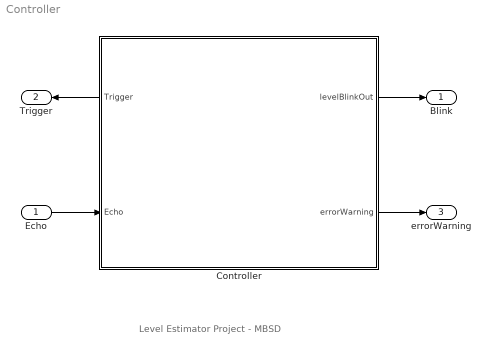
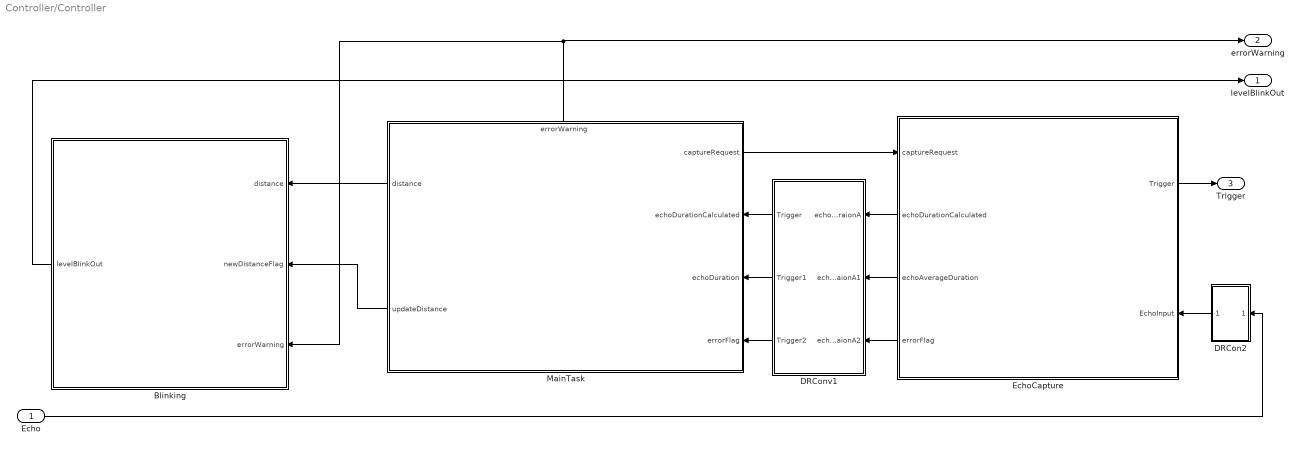
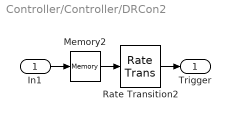
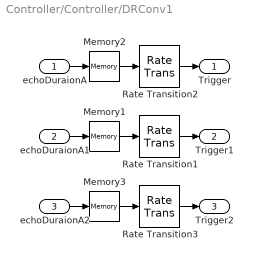
== stateflow chart Controller/Blinking ==
  state Blinking [parallel]
    state StateOn
      levelBlinkOut = true;
    state StateOff
      levelBlinkOut = false;
    (default) -> StateOn
    StateOff -> StateOn : after(offTime,msec)
    StateOn -> StateOff : [after(onTime,msec)...  && onTime ~= 100]
  state updateDistance [parallel]
    state startState
      blinkBasedOnDistance(distance)
    state blinkBasedOnDistance(distanceIn) [function]
      (default) -> (junction 178) : % decide blinkTaskIndex based on distance
      (junction 178) -> (junction 179) [order 1] : [ distanceIn >= 10 && distanceIn <= 100 ]
      (junction 178) -> (junction 180) [order 2]
      (junction 179) -> (junction 184) : {onTime = uint16(distanceIn); offTime = uint16(100-distanceIn);}
      (junction 180) -> (junction 181) [order 1] : [distanceIn > 3 && distanceIn < 10]
      (junction 180) -> (junction 211) [order 2]
      (junction 181) -> (junction 183) : {onTime = 250; offTime = 250;}
      (junction 211) -> (junction 214) [order 1] : [distanceIn >  100 &&  distanceIn <= 400]
      (junction 211) -> (junction 182) [order 2] : {onTime = 500; offTime = 500;}
      (junction 214) -> (junction 215) : {onTime = 250; offTime = 250;}
      (junction 215) -> (junction 182)
      (junction 183) -> (junction 215)
      (junction 184) -> (junction 183)
      (junction 182) -> (junction 185)
    (default) -> startState
    startState -> startState : [newDistanceFlag == true || errorWarning == true]
  data: distanceIn function_input; distance input double; levelBlinkOut output boolean =false; newDistanceFlag input boolean =false; errorWarning input boolean; offTime local uint16 =uint16(0); onTime local uint16 =uint16(0)

== stateflow chart Controller/EchoCapture ==
  state EchoDurationCapture [parallel]
    state waitingCaptureRequest
      entry:
      counter = 0;
      errorFlag = false;
      exit:
      echoDurationCalculated = false;
      echoAverageDuration = 0;
    state calculateDurationAverage
      entry:
      echoAverageDuration = ...
      echoAverageDuration/4;
      echoDurationCalculated = true;
    state triggerOn
      entry:
      Trigger = true;
      exit:
      Trigger = false
      counter = counter+1;
    state chech_N_Trigger
    state echoError
      entry:
      counter = 0;
      errorFlag =  true;
    state checkEchoOn
      entry, during, exit:
      echoOffDuraion = elapsed(msec);
    state calculateEchoDuration
      entry, during, exit:
      echoOnDuraion = elapsed(usec);
    state exitState
      entry:
      echoAverageDuration = ...
      echoAverageDuration + echoOnDuraion;
    (default) -> waitingCaptureRequest
    (junction 542) -> waitingCaptureRequest
    calculateDurationAverage -> waitingCaptureRequest
    (junction 540) -> (junction 542) : after(30, msec)
    waitingCaptureRequest -> triggerOn : [captureRequest == true]
    chech_N_Trigger -> calculateDurationAverage [order 1] : [counter >= 4]
    (junction 537) -> triggerOn : after(30, msec)
    echoError -> (junction 537)
    chech_N_Trigger -> triggerOn [order 2] : after(30, msec)
    triggerOn -> checkEchoOn : after(10, msec)
    (junction 429) -> chech_N_Trigger
    checkEchoOn -> echoError [order 2] : [echoOffDuraion > 3]
    checkEchoOn -> calculateEchoDuration [order 1] : [EchoInput == true]
    calculateEchoDuration -> (junction 540) [order 1] : [errorFlag ==  true]
    calculateEchoDuration -> exitState [order 2] : [EchoInput == false &&  errorFlag == false]
    exitState -> (junction 429)
  data: Trigger output boolean =false; EchoInput input; counter local uint8 =uint8(0); captureRequest input boolean; echoDurationCalculated output boolean =false; echoAverageDuration output double =0; errorFlag output boolean =false; echoOffDuraion local; echoOnDuraion local

== stateflow chart Controller/MainTask ==
  state mainTask [parallel]
    state InitialState
      entry:
      captureRequest = false;
      updateDistance = false;
    state waitingErrorHandler
      entry:
      distance = 0;
      errorWarning = true;
      exit:
      errorWarning = false;
    state requestOn
      entry:
      captureRequest = true;
    state requestOff
      entry:
      captureRequest = false;
    state DistanceCalcualtion
      entry:
      updateDistance = true;
      distance = echoDuration/58;
    state CalcualtionexitState
      entry:
      updateDistance = false;
    state waitWakeUp
      taskCompleted = true
    (default) -> InitialState
    waitingErrorHandler -> InitialState : [errorFlag == false]
    (junction 83) -> InitialState
    (junction 82) -> (junction 83)
    InitialState -> requestOn
    (junction 42) -> waitingErrorHandler
    requestOn -> requestOff
    requestOff -> (junction 42) [order 2] : [errorFlag == true]
    requestOff -> DistanceCalcualtion [order 1] : [echoDurationCalculated == true]
    DistanceCalcualtion -> CalcualtionexitState
    CalcualtionexitState -> waitWakeUp
    waitWakeUp -> (junction 82) : [taskCompleted == false]
  state wakeEvery1sec [parallel]
    state wait1sec
    state clearTaskComoleted
      taskCompleted = false
    (default) -> wait1sec
    clearTaskComoleted -> wait1sec
    wait1sec -> clearTaskComoleted : after(1000, msec)
  data: captureRequest output boolean =false; echoDurationCalculated input boolean; distance output double; updateDistance output boolean =false; echoDuration input double; errorFlag input boolean; errorWarning output boolean =false; taskCompleted local boolean =false

/**
 *******************************************************************************
 **  FILE INFORMATION:
 **  Filename:           Controller.c
 **  File Creation Date: 25-Jun-2021
 **
 **  ABSTRACT:
 **
 **
 **  NOTES:
 **
 **
 **  MODEL INFORMATION:
 **  Model Name:         Controller
 **  Model Description:
 **  Model Version:      1.180
 **  Model Author:       The MathWorks, Inc. - Thu Feb 16 11:28:08 2012
 **
 **  MODIFICATION HISTORY:
 **  Model at Code Generation: moody - Fri Jun 25 21:25:02 2021
 **
 **  Last Saved Modification:  moody - Fri Jun 25 19:52:08 2021
 **
 **
 *******************************************************************************
 **/

#include "Controller.h"

/*  Defines */

/* Named constants for Chart: '<S1>/Blinking' */
#define Controller_IN_NO_ACTIVE_CHILD  ((uint8_T)0U)
#define Controller_IN_StateOff         ((uint8_T)1U)
#define Controller_IN_StateOn          ((uint8_T)2U)

/* Named constants for Chart: '<S1>/EchoCapture' */
#define Con_IN_calculateDurationAverage ((uint8_T)1U)
#define Contro_IN_calculateEchoDuration ((uint8_T)2U)
#define Contro_IN_waitingCaptureRequest ((uint8_T)8U)
#define Controller_IN_chech_N_Trigger  ((uint8_T)3U)
#define Controller_IN_checkEchoOn      ((uint8_T)4U)
#define Controller_IN_echoError        ((uint8_T)5U)
#define Controller_IN_exitState        ((uint8_T)6U)
#define Controller_IN_triggerOn        ((uint8_T)7U)

/* Named constants for Chart: '<S1>/MainTask' */
#define Control_IN_CalcualtionexitState ((uint8_T)1U)
#define Controll_IN_DistanceCalcualtion ((uint8_T)2U)
#define Controll_IN_waitingErrorHandler ((uint8_T)7U)
#define Controlle_IN_clearTaskComoleted ((uint8_T)1U)
#define Controller_IN_InitialState     ((uint8_T)3U)
#define Controller_IN_requestOff       ((uint8_T)4U)
#define Controller_IN_requestOn        ((uint8_T)5U)
#define Controller_IN_wait1sec         ((uint8_T)2U)
#define Controller_IN_waitWakeUp       ((uint8_T)6U)

/*  Data Types */

/**************************** GLOBAL DATA *************************************/
/*  Definitions */

/*  Declarations  */
extern real_T rt_roundd(real_T u);

/* Forward declaration for local functions */
static void Controller_blinkBasedOnDistance(real_T distanceIn, D_Work_Controller
  *Controller_DWork);

/*===========*
 * Constants *
 *===========*/
#define RT_PI                          3.14159265358979323846
#define RT_PIF                         3.1415927F
#define RT_LN_10                       2.30258509299404568402
#define RT_LN_10F                      2.3025851F
#define RT_LOG10E                      0.43429448190325182765
#define RT_LOG10EF                     0.43429449F
#define RT_E                           2.7182818284590452354
#define RT_EF                          2.7182817F

/*
 * UNUSED_PARAMETER(x)
 *   Used to specify that a function parameter (argument) is required but not
 *   accessed by the function body.
 */
#ifndef UNUSED_PARAMETER
#if defined(__LCC__)
#define UNUSED_PARAMETER(x)                                      /* do nothing */
#else

/*
 * This is the semi-ANSI standard way of indicating that an
 * unused function parameter is required.
 */
#define UNUSED_PARAMETER(x)            (void) (x)
#endif
#endif

/***************************** FILE SCOPE DATA ********************************/

/*************************** FUNCTIONS ****************************************/
real_T rt_roundd(real_T u)
{
  real_T y;
  if (fabs(u) < 4.503599627370496E+15) {
    if (u >= 0.5) {
      y = floor(u + 0.5);
    } else if (u > -0.5) {
      y = 0.0;
    } else {
      y = ceil(u - 0.5);
    }
  } else {
    y = u;
  }

  return y;
}

/* Function for Chart: '<S1>/Blinking' */
static void Controller_blinkBasedOnDistance(real_T distanceIn, D_Work_Controller
  *Controller_DWork)
{
  real_T tmp;

  /* MATLAB Function 'blinkBasedOnDistance': '<S2>:177' */
  /* Graphical Function 'blinkBasedOnDistance': '<S2>:177' */
  /* Transition: '<S2>:186' */
  if ((distanceIn >= 10.0) && (distanceIn <= 100.0)) {
    /* '<S2>:187:1' */
    /* Transition: '<S2>:187' */
    /* Transition: '<S2>:189' */
    /* '<S2>:189:1' */
    tmp = rt_roundd(distanceIn);
    if (tmp < 65536.0) {
      if (tmp >= 0.0) {
        Controller_DWork->onTime = (uint16_T)tmp;
      } else {
        Controller_DWork->onTime = 0U;
      }
    } else {
      Controller_DWork->onTime = MAX_uint16_T;
    }

    /* '<S2>:189:1' */
    tmp = rt_roundd(100.0 - distanceIn);
    if (tmp < 65536.0) {
      if (tmp >= 0.0) {
        Controller_DWork->offTime = (uint16_T)tmp;
      } else {
        Controller_DWork->offTime = 0U;
      }
    } else {
      Controller_DWork->offTime = MAX_uint16_T;
    }

    /* Transition: '<S2>:193' */
    /* Transition: '<S2>:217' */
    /* Transition: '<S2>:192' */
  } else {
    /* Transition: '<S2>:188' */
    if ((distanceIn > 3.0) && (distanceIn < 10.0)) {
      /* '<S2>:190:1' */
      /* Transition: '<S2>:190' */
      /* Transition: '<S2>:191' */
      /* '<S2>:191:1' */
      Controller_DWork->onTime = 250U;

      /* '<S2>:191:1' */
      Controller_DWork->offTime = 250U;

      /* Transition: '<S2>:217' */
      /* Transition: '<S2>:192' */
    } else {
      /* Transition: '<S2>:212' */
      if ((distanceIn > 100.0) && (distanceIn <= 400.0)) {
        /* '<S2>:213:1' */
        /* Transition: '<S2>:213' */
        /* Transition: '<S2>:216' */
        /* '<S2>:216:1' */
        Controller_DWork->onTime = 250U;

        /* '<S2>:216:1' */
        Controller_DWork->offTime = 250U;

        /* Transition: '<S2>:192' */
      } else {
        /* Transition: '<S2>:195' */
        /* '<S2>:195:1' */
        Controller_DWork->onTime = 500U;

        /* '<S2>:195:1' */
        Controller_DWork->offTime = 500U;
      }
    }
  }

  /* Transition: '<S2>:194' */
}

/* Model step function */
void Controller_step(RT_MODEL_Controller *const Controller_M,
                     ExternalInputs_Controller *Controller_U,
                     ExternalOutputs_Controller *Controller_Y)
{
  BlockIO_Controller *Controller_B = Controller_M->blockIO;
  D_Work_Controller *Controller_DWork = Controller_M->dwork;
  int32_T tmp;

  /* Chart: '<S1>/MainTask' incorporates:
   *  Memory: '<S4>/Memory1'
   *  Memory: '<S4>/Memory2'
   *  Memory: '<S4>/Memory3'
   */
  if (Controller_DWork->temporalCounter_i1_i < 16383U) {
    Controller_DWork->temporalCounter_i1_i++;
  }

  /* Gateway: Controller/MainTask */
  /* During: Controller/MainTask */
  if (Controller_DWork->is_active_c3_Controller == 0U) {
    /* Entry: Controller/MainTask */
    Controller_DWork->is_active_c3_Controller = 1U;

    /* Entry Internal: Controller/MainTask */
    /* Entry Internal 'mainTask': '<S6>:69' */
    /* Transition: '<S6>:2' */
    Controller_DWork->is_mainTask = Controller_IN_InitialState;

    /* Entry 'InitialState': '<S6>:1' */
    Controller_B->captureRequest = false;
    Controller_B->updateDistance = false;

    /* Entry Internal 'wakeEvery1sec': '<S6>:68' */
    /* Transition: '<S6>:76' */
    Controller_DWork->is_wakeEvery1sec = Controller_IN_wait1sec;
    Controller_DWork->temporalCounter_i1_i = 0U;
  } else {
    /* During 'mainTask': '<S6>:69' */
    switch (Controller_DWork->is_mainTask) {
     case Control_IN_CalcualtionexitState:
      Controller_B->updateDistance = false;

      /* During 'CalcualtionexitState': '<S6>:44' */
      /* Transition: '<S6>:67' */
      Controller_DWork->is_mainTask = Controller_IN_waitWakeUp;

      /* Entry 'waitWakeUp': '<S6>:66' */
      Controller_DWork->taskCompleted = true;
      break;

     case Controll_IN_DistanceCalcualtion:
      /* During 'DistanceCalcualtion': '<S6>:6' */
      /* Transition: '<S6>:45' */
      Controller_DWork->is_mainTask = Control_IN_CalcualtionexitState;

      /* Entry 'CalcualtionexitState': '<S6>:44' */
      Controller_B->updateDistance = false;
      break;

     case Controller_IN_InitialState:
      Controller_B->updateDistance = false;

      /* During 'InitialState': '<S6>:1' */
      /* Transition: '<S6>:4' */
      Controller_DWork->is_mainTask = Controller_IN_requestOn;

      /* Entry 'requestOn': '<S6>:40' */
      Controller_B->captureRequest = true;
      break;

     case Controller_IN_requestOff:
      Controller_B->captureRequest = false;

      /* During 'requestOff': '<S6>:38' */
      if (Controller_DWork->Memory2_PreviousInput) {
        /* Transition: '<S6>:7' */
        Controller_DWork->is_mainTask = Controll_IN_DistanceCalcualtion;

        /* Entry 'DistanceCalcualtion': '<S6>:6' */
        Controller_B->updateDistance = true;
        Controller_B->distance = Controller_DWork->Memory1_PreviousInput / 58.0;
      } else {
        if (Controller_DWork->Memory3_PreviousInput) {
          /* Transition: '<S6>:43' */
          /* Transition: '<S6>:27' */
          Controller_DWork->is_mainTask = Controll_IN_waitingErrorHandler;

          /* Entry 'waitingErrorHandler': '<S6>:37' */
          Controller_B->distance = 0.0;

          /* Outport: '<Root>/errorWarning' */
          Controller_Y->errorWarning = true;
        }
      }
      break;

     case Controller_IN_requestOn:
      /* During 'requestOn': '<S6>:40' */
      /* Transition: '<S6>:39' */
      Controller_DWork->is_mainTask = Controller_IN_requestOff;

      /* Entry 'requestOff': '<S6>:38' */
      Controller_B->captureRequest = false;
      break;

     case Controller_IN_waitWakeUp:
      /* During 'waitWakeUp': '<S6>:66' */
      if (!Controller_DWork->taskCompleted) {
        /* Transition: '<S6>:84' */
        /* Transition: '<S6>:85' */
        /* Transition: '<S6>:86' */
        Controller_DWork->is_mainTask = Controller_IN_InitialState;

        /* Entry 'InitialState': '<S6>:1' */
        Controller_B->captureRequest = false;
        Controller_B->updateDistance = false;
      } else {
        Controller_DWork->taskCompleted = true;
      }
      break;

     default:
      /* During 'waitingErrorHandler': '<S6>:37' */
      if (!Controller_DWork->Memory3_PreviousInput) {
        /* Outport: '<Root>/errorWarning' */
        /* Transition: '<S6>:34' */
        /* Exit 'waitingErrorHandler': '<S6>:37' */
        Controller_Y->errorWarning = false;
        Controller_DWork->is_mainTask = Controller_IN_InitialState;

        /* Entry 'InitialState': '<S6>:1' */
        Controller_B->captureRequest = false;
        Controller_B->updateDistance = false;
      }
      break;
    }

    /* During 'wakeEvery1sec': '<S6>:68' */
    if (Controller_DWork->is_wakeEvery1sec == Controlle_IN_clearTaskComoleted) {
      /* During 'clearTaskComoleted': '<S6>:88' */
      /* Transition: '<S6>:81' */
      Controller_DWork->is_wakeEvery1sec = Controller_IN_wait1sec;
      Controller_DWork->temporalCounter_i1_i = 0U;
    } else {
      /* During 'wait1sec': '<S6>:78' */
      if (Controller_DWork->temporalCounter_i1_i >= 10000U) {
        /* Transition: '<S6>:80' */
        Controller_DWork->is_wakeEvery1sec = Controlle_IN_clearTaskComoleted;

        /* Entry 'clearTaskComoleted': '<S6>:88' */
        Controller_DWork->taskCompleted = false;
      }
    }
  }

  /* End of Chart: '<S1>/MainTask' */

  /* Chart: '<S1>/Blinking' incorporates:
   *  Outport: '<Root>/errorWarning'
   */
  if (Controller_DWork->temporalCounter_i1_j < 1048575U) {
    Controller_DWork->temporalCounter_i1_j++;
  }

  /* Gateway: Controller/Blinking */
  /* During: Controller/Blinking */
  if (Controller_DWork->is_active_c1_Controller == 0U) {
    /* Entry: Controller/Blinking */
    Controller_DWork->is_active_c1_Controller = 1U;

    /* Entry Internal: Controller/Blinking */
    /* Entry Internal 'updateDistance': '<S2>:173' */
    /* Transition: '<S2>:153' */
    /* Entry 'startState': '<S2>:135' */
    Controller_blinkBasedOnDistance(Controller_B->distance, Controller_DWork);

    /* Entry 'Blinking': '<S2>:200' */
    /* Entry Internal 'Blinking': '<S2>:200' */
    /* Transition: '<S2>:201' */
    Controller_DWork->is_Blinking = Controller_IN_StateOn;
    Controller_DWork->temporalCounter_i1_j = 0U;

    /* Outport: '<Root>/Blink' */
    /* Entry 'StateOn': '<S2>:204' */
    Controller_Y->Blink = true;
  } else {
    /* During 'updateDistance': '<S2>:173' */
    /* During 'startState': '<S2>:135' */
    if (Controller_B->updateDistance || Controller_Y->errorWarning) {
      /* Transition: '<S2>:206' */
      /* Entry 'startState': '<S2>:135' */
      Controller_blinkBasedOnDistance(Controller_B->distance, Controller_DWork);
    } else {
      Controller_blinkBasedOnDistance(Controller_B->distance, Controller_DWork);
    }

    /* During 'Blinking': '<S2>:200' */
    if (Controller_DWork->is_Blinking == Controller_IN_StateOff) {
      /* During 'StateOff': '<S2>:205' */
      if (Controller_DWork->temporalCounter_i1_j >= (uint32_T)
          (Controller_DWork->offTime * 10)) {
        /* Transition: '<S2>:202' */
        Controller_DWork->is_Blinking = Controller_IN_StateOn;
        Controller_DWork->temporalCounter_i1_j = 0U;

        /* Outport: '<Root>/Blink' */
        /* Entry 'StateOn': '<S2>:204' */
        Controller_Y->Blink = true;
      } else {
        /* Outport: '<Root>/Blink' */
        Controller_Y->Blink = false;
      }
    } else {
      /* During 'StateOn': '<S2>:204' */
      if ((Controller_DWork->temporalCounter_i1_j >= (uint32_T)
           (Controller_DWork->onTime * 10)) && (Controller_DWork->onTime != 100))
      {
        /* Transition: '<S2>:203' */
        Controller_DWork->is_Blinking = Controller_IN_StateOff;
        Controller_DWork->temporalCounter_i1_j = 0U;

        /* Outport: '<Root>/Blink' */
        /* Entry 'StateOff': '<S2>:205' */
        Controller_Y->Blink = false;
      } else {
        /* Outport: '<Root>/Blink' */
        Controller_Y->Blink = true;
      }
    }
  }

  /* End of Chart: '<S1>/Blinking' */

  /* Chart: '<S1>/EchoCapture' incorporates:
   *  Memory: '<S3>/Memory2'
   */
  if (Controller_DWork->temporalCounter_i1 < MAX_uint32_T) {
    Controller_DWork->temporalCounter_i1++;
  }

  /* Gateway: Controller/EchoCapture */
  /* During: Controller/EchoCapture */
  if (Controller_DWork->is_active_c2_Controller == 0U) {
    /* Entry: Controller/EchoCapture */
    Controller_DWork->is_active_c2_Controller = 1U;

    /* Entry Internal: Controller/EchoCapture */
    /* Entry Internal 'EchoDurationCapture': '<S5>:235' */
    /* Transition: '<S5>:414' */
    Controller_DWork->is_EchoDurationCapture = Contro_IN_waitingCaptureRequest;

    /* Entry 'waitingCaptureRequest': '<S5>:380' */
    Controller_DWork->counter = 0U;
    Controller_B->errorFlag = false;
  } else {
    /* During 'EchoDurationCapture': '<S5>:235' */
    switch (Controller_DWork->is_EchoDurationCapture) {
     case Con_IN_calculateDurationAverage:
      /* During 'calculateDurationAverage': '<S5>:411' */
      /* Transition: '<S5>:413' */
      Controller_DWork->is_EchoDurationCapture = Contro_IN_waitingCaptureRequest;

      /* Entry 'waitingCaptureRequest': '<S5>:380' */
      Controller_DWork->counter = 0U;
      Controller_B->errorFlag = false;
      break;

     case Contro_IN_calculateEchoDuration:
      /* During 'calculateEchoDuration': '<S5>:520' */
      if (Controller_B->errorFlag && (Controller_DWork->temporalCounter_i1 >=
           300U)) {
        /* Transition: '<S5>:541' */
        /* Transition: '<S5>:543' */
        /* Transition: '<S5>:544' */
        /* Exit 'calculateEchoDuration': '<S5>:520' */
        Controller_DWork->is_EchoDurationCapture =
          Contro_IN_waitingCaptureRequest;

        /* Entry 'waitingCaptureRequest': '<S5>:380' */
        Controller_DWork->counter = 0U;
        Controller_B->errorFlag = false;
      } else {
        if ((!Controller_DWork->Memory2_PreviousInput_i) &&
            (!Controller_B->errorFlag)) {
          /* Transition: '<S5>:515' */
          /* Exit 'calculateEchoDuration': '<S5>:520' */
          Controller_DWork->is_EchoDurationCapture = Controller_IN_exitState;

          /* Entry 'exitState': '<S5>:516' */
          Controller_B->echoAverageDuration += (real_T)
            Controller_DWork->temporalCounter_i1 * 100.0;
        }
      }
      break;

     case Controller_IN_chech_N_Trigger:
      /* During 'chech_N_Trigger': '<S5>:545' */
      if (Controller_DWork->counter >= 4) {
        /* Transition: '<S5>:524' */
        Controller_DWork->is_EchoDurationCapture =
          Con_IN_calculateDurationAverage;

        /* Entry 'calculateDurationAverage': '<S5>:411' */
        Controller_B->echoAverageDuration /= 4.0;
        Controller_B->echoDurationCalculated = true;
      } else {
        if (Controller_DWork->temporalCounter_i1 >= 300U) {
          /* Transition: '<S5>:546' */
          Controller_DWork->is_EchoDurationCapture = Controller_IN_triggerOn;
          Controller_DWork->temporalCounter_i1 = 0U;

          /* Outport: '<Root>/Trigger' */
          /* Entry 'triggerOn': '<S5>:512' */
          Controller_Y->Trigger = true;
        }
      }
      break;

     case Controller_IN_checkEchoOn:
      /* During 'checkEchoOn': '<S5>:518' */
      if (Controller_DWork->Memory2_PreviousInput_i) {
        /* Transition: '<S5>:521' */
        /* Exit 'checkEchoOn': '<S5>:518' */
        Controller_DWork->echoOffDuraion = (real_T)
          Controller_DWork->temporalCounter_i1 * 0.1;
        Controller_DWork->is_EchoDurationCapture =
          Contro_IN_calculateEchoDuration;
        Controller_DWork->temporalCounter_i1 = 0U;

        /* Entry 'calculateEchoDuration': '<S5>:520' */
      } else if (Controller_DWork->echoOffDuraion > 3.0) {
        /* Transition: '<S5>:519' */
        /* Exit 'checkEchoOn': '<S5>:518' */
        Controller_DWork->echoOffDuraion = (real_T)
          Controller_DWork->temporalCounter_i1 * 0.1;
        Controller_DWork->is_EchoDurationCapture = Controller_IN_echoError;
        Controller_DWork->temporalCounter_i1 = 0U;

        /* Entry 'echoError': '<S5>:517' */
        Controller_DWork->counter = 0U;
        Controller_B->errorFlag = true;
      } else {
        Controller_DWork->echoOffDuraion = (real_T)
          Controller_DWork->temporalCounter_i1 * 0.1;
      }
      break;

     case Controller_IN_echoError:
      /* During 'echoError': '<S5>:517' */
      /* Transition: '<S5>:513' */
      if (Controller_DWork->temporalCounter_i1 >= 300U) {
        /* Transition: '<S5>:538' */
        Controller_DWork->is_EchoDurationCapture = Controller_IN_triggerOn;
        Controller_DWork->temporalCounter_i1 = 0U;

        /* Outport: '<Root>/Trigger' */
        /* Entry 'triggerOn': '<S5>:512' */
        Controller_Y->Trigger = true;
      }
      break;

     case Controller_IN_exitState:
      /* During 'exitState': '<S5>:516' */
      /* Transition: '<S5>:430' */
      /* Transition: '<S5>:531' */
      Controller_DWork->is_EchoDurationCapture = Controller_IN_chech_N_Trigger;
      Controller_DWork->temporalCounter_i1 = 0U;
      break;

     case Controller_IN_triggerOn:
      /* During 'triggerOn': '<S5>:512' */
      if (Controller_DWork->temporalCounter_i1 >= 100U) {
        /* Outport: '<Root>/Trigger' */
        /* Transition: '<S5>:508' */
        /* Exit 'triggerOn': '<S5>:512' */
        Controller_Y->Trigger = false;
        tmp = (int32_T)(Controller_DWork->counter + 1U);
        if (Controller_DWork->counter + 1U > 255U) {
          tmp = 255;
        }

        Controller_DWork->counter = (uint8_T)tmp;
        Controller_DWork->is_EchoDurationCapture = Controller_IN_checkEchoOn;
        Controller_DWork->temporalCounter_i1 = 0U;

        /* Entry 'checkEchoOn': '<S5>:518' */
        Controller_DWork->echoOffDuraion = (real_T)
          Controller_DWork->temporalCounter_i1 * 0.1;
      }
      break;

     default:
      /* During 'waitingCaptureRequest': '<S5>:380' */
      if (Controller_B->captureRequest) {
        /* Transition: '<S5>:403' */
        /* Exit 'waitingCaptureRequest': '<S5>:380' */
        Controller_B->echoDurationCalculated = false;
        Controller_B->echoAverageDuration = 0.0;
        Controller_DWork->is_EchoDurationCapture = Controller_IN_triggerOn;
        Controller_DWork->temporalCounter_i1 = 0U;

        /* Outport: '<Root>/Trigger' */
        /* Entry 'triggerOn': '<S5>:512' */
        Controller_Y->Trigger = true;
      }
      break;
    }
  }

  /* End of Chart: '<S1>/EchoCapture' */

  /* Update for Memory: '<S4>/Memory2' */
  Controller_DWork->Memory2_PreviousInput = Controller_B->echoDurationCalculated;

  /* Update for Memory: '<S4>/Memory1' */
  Controller_DWork->Memory1_PreviousInput = Controller_B->echoAverageDuration;

  /* Update for Memory: '<S4>/Memory3' */
  Controller_DWork->Memory3_PreviousInput = Controller_B->errorFlag;

  /* Update for Memory: '<S3>/Memory2' incorporates:
   *  Inport: '<Root>/Echo'
   */
  Controller_DWork->Memory2_PreviousInput_i = Controller_U->Echo;
}
